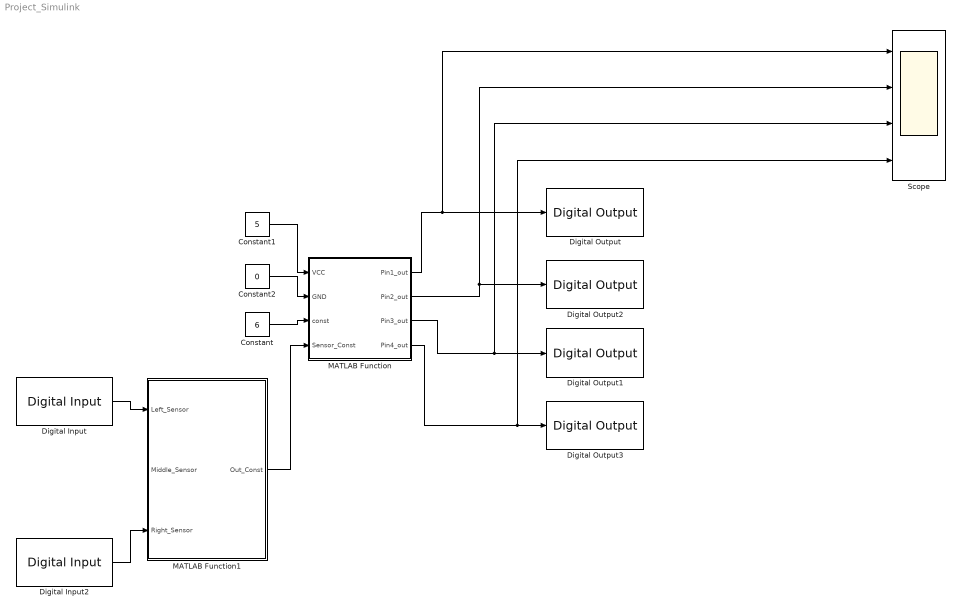
== matlab function Project_Simulink/MATLAB Function1 ==
function Out_Const  = fcn(Left_Sensor,Middle_Sensor,Right_Sensor)
%#codegen
% surface then arduino gets 1 as input 
%and when senses black line arduino gets 0 as input.
if ((Left_Sensor >= 0) && (Middle_Sensor == 1) && (Right_Sensor >= 0)) % forward
    Out_Const=1;
elseif ((Left_Sensor >= 0) && (Middle_Sensor >= 0) && (Right_Sensor == 1)) % Right
    Out_Const=3;
elseif ((Left_Sensor ==1) && (Middle_Sensor >=0) && (Right_Sensor >= 0)) % left
    Out_Const=4;  
else
    Out_Const=7;  
    
end

== matlab function Project_Simulink/MATLAB Function ==


function [Pin1_out,Pin2_out,Pin3_out,Pin4_out] = fcn(VCC,GND,const,Sensor_Const)

% Line Follower *******************************

if(const == 6 && Sensor_Const ==1) % forward
    Pin1_out=VCC;
    Pin2_out=GND;
    Pin3_out=VCC;
    Pin4_out=GND;
elseif(const == 6 && Sensor_Const ==3) % right 
    Pin1_out=GND;
    Pin2_out=VCC;
    Pin3_out=GND;
    Pin4_out=GND;
elseif (const == 6 && Sensor_Const ==4) %Left
    Pin1_out=GND;
    Pin2_out=GND;
    Pin3_out=GND;
    Pin4_out=VCC;    
elseif (const == 1) %forward
    Pin1_out=VCC;
    Pin2_out=GND;
    Pin3_out=VCC;
    Pin4_out=GND;
elseif (const == 2) %reverse
    Pin1_out=GND;
    Pin2_out=VCC;
    Pin3_out=GND;
    Pin4_out=VCC;
elseif (const == 3) %right
    Pin1_out=GND;
    Pin2_out=VCC;
    Pin3_out=GND;
    Pin4_out=GND;
elseif (const == 4) %Left
    Pin1_out=GND;
    Pin2_out=GND;
    Pin3_out=GND;
    Pin4_out=VCC;
else    %stop
    Pin1_out=GND;
    Pin2_out=GND;
    Pin3_out=GND;
    Pin4_out=GND;

end

/*
 * File: Project_Simulink.c
 *
 * Code generated for Simulink model 'Project_Simulink'.
 *
 * Model version                  : 1.58
 * Simulink Coder version         : 8.10 (R2016a) 10-Feb-2016
 * C/C++ source code generated on : Sun Feb 09 15:02:18 2020
 *
 * Target selection: ert.tlc
 * Embedded hardware selection: Atmel->AVR
 * Code generation objectives: Unspecified
 * Validation result: Not run
 */

#include "Project_Simulink.h"
#include "Project_Simulink_private.h"
#include "Project_Simulink_dt.h"

/* Block signals (auto storage) */
B_Project_Simulink_T Project_Simulink_B;

/* Block states (auto storage) */
DW_Project_Simulink_T Project_Simulink_DW;

/* Real-time model */
RT_MODEL_Project_Simulink_T Project_Simulink_M_;
RT_MODEL_Project_Simulink_T *const Project_Simulink_M = &Project_Simulink_M_;

/* Model step function */
void Project_Simulink_step(void)
{
  boolean_T rtb_DigitalInput_0;
  boolean_T rtb_DigitalInput2_0;
  int16_T rtb_Out_Const;
  uint8_T tmp;

  /* S-Function (arduinodigitalinput_sfcn): '<Root>/Digital Input' */
  rtb_DigitalInput_0 = MW_digitalRead(Project_Simulink_P.DigitalInput_p1);

  /* S-Function (arduinodigitalinput_sfcn): '<Root>/Digital Input2' */
  rtb_DigitalInput2_0 = MW_digitalRead(Project_Simulink_P.DigitalInput2_p1);

  /* MATLAB Function: '<Root>/MATLAB Function1' incorporates:
   *  S-Function (arduinodigitalinput_sfcn): '<Root>/Digital Input'
   *  S-Function (arduinodigitalinput_sfcn): '<Root>/Digital Input2'
   */
  /*  surface then arduino gets 1 as input  */
  /* and when senses black line arduino gets 0 as input. */
  /* MATLAB Function 'MATLAB Function1': '<S6>:1' */
  /* '<S6>:1:5' if ((Left_Sensor >= 0) && (Middle_Sensor == 1) && (Right_Sensor >= 0)) */
  if (rtb_DigitalInput2_0) {
    /* '<S6>:1:7' elseif ((Left_Sensor >= 0) && (Middle_Sensor >= 0) && (Right_Sensor == 1)) */
    /*  Right */
    /* '<S6>:1:8' Out_Const=3; */
    rtb_Out_Const = 3;
  } else if (rtb_DigitalInput_0) {
    /* '<S6>:1:9' elseif ((Left_Sensor ==1) && (Middle_Sensor >=0) && (Right_Sensor >= 0)) */
    /*  left */
    /* '<S6>:1:10' Out_Const=4; */
    rtb_Out_Const = 4;
  } else {
    /* '<S6>:1:11' else */
    /* '<S6>:1:12' Out_Const=7; */
    rtb_Out_Const = 7;
  }

  /* End of MATLAB Function: '<Root>/MATLAB Function1' */

  /* MATLAB Function: '<Root>/MATLAB Function' incorporates:
   *  Constant: '<Root>/Constant'
   *  Constant: '<Root>/Constant1'
   *  Constant: '<Root>/Constant2'
   */
  /*  Line Follower ******************************* */
  /* MATLAB Function 'MATLAB Function': '<S5>:1' */
  /* '<S5>:1:7' if(const == 6 && Sensor_Const ==1) */
  if ((Project_Simulink_P.Constant_Value == 6.0) && (rtb_Out_Const == 3)) {
    /* '<S5>:1:12' elseif(const == 6 && Sensor_Const ==3) */
    /*  right  */
    /* '<S5>:1:13' Pin1_out=GND; */
    Project_Simulink_B.Pin1_out = Project_Simulink_P.Constant2_Value;

    /* '<S5>:1:14' Pin2_out=VCC; */
    Project_Simulink_B.Pin2_out = Project_Simulink_P.Constant1_Value;

    /* '<S5>:1:15' Pin3_out=GND; */
    Project_Simulink_B.Pin3_out = Project_Simulink_P.Constant2_Value;

    /* '<S5>:1:16' Pin4_out=GND; */
    Project_Simulink_B.Pin4_out = Project_Simulink_P.Constant2_Value;
  } else if ((Project_Simulink_P.Constant_Value == 6.0) && (rtb_Out_Const == 4))
  {
    /* '<S5>:1:17' elseif (const == 6 && Sensor_Const ==4) */
    /* Left */
    /* '<S5>:1:18' Pin1_out=GND; */
    Project_Simulink_B.Pin1_out = Project_Simulink_P.Constant2_Value;

    /* '<S5>:1:19' Pin2_out=GND; */
    Project_Simulink_B.Pin2_out = Project_Simulink_P.Constant2_Value;

    /* '<S5>:1:20' Pin3_out=GND; */
    Project_Simulink_B.Pin3_out = Project_Simulink_P.Constant2_Value;

    /* '<S5>:1:21' Pin4_out=VCC; */
    Project_Simulink_B.Pin4_out = Project_Simulink_P.Constant1_Value;
  } else if (Project_Simulink_P.Constant_Value == 1.0) {
    /* '<S5>:1:22' elseif (const == 1) */
    /* forward */
    /* '<S5>:1:23' Pin1_out=VCC; */
    Project_Simulink_B.Pin1_out = Project_Simulink_P.Constant1_Value;

    /* '<S5>:1:24' Pin2_out=GND; */
    Project_Simulink_B.Pin2_out = Project_Simulink_P.Constant2_Value;

    /* '<S5>:1:25' Pin3_out=VCC; */
    Project_Simulink_B.Pin3_out = Project_Simulink_P.Constant1_Value;

    /* '<S5>:1:26' Pin4_out=GND; */
    Project_Simulink_B.Pin4_out = Project_Simulink_P.Constant2_Value;
  } else if (Project_Simulink_P.Constant_Value == 2.0) {
    /* '<S5>:1:27' elseif (const == 2) */
    /* reverse */
    /* '<S5>:1:28' Pin1_out=GND; */
    Project_Simulink_B.Pin1_out = Project_Simulink_P.Constant2_Value;

    /* '<S5>:1:29' Pin2_out=VCC; */
    Project_Simulink_B.Pin2_out = Project_Simulink_P.Constant1_Value;

    /* '<S5>:1:30' Pin3_out=GND; */
    Project_Simulink_B.Pin3_out = Project_Simulink_P.Constant2_Value;

    /* '<S5>:1:31' Pin4_out=VCC; */
    Project_Simulink_B.Pin4_out = Project_Simulink_P.Constant1_Value;
  } else if (Project_Simulink_P.Constant_Value == 3.0) {
    /* '<S5>:1:32' elseif (const == 3) */
    /* right */
    /* '<S5>:1:33' Pin1_out=GND; */
    Project_Simulink_B.Pin1_out = Project_Simulink_P.Constant2_Value;

    /* '<S5>:1:34' Pin2_out=VCC; */
    Project_Simulink_B.Pin2_out = Project_Simulink_P.Constant1_Value;

    /* '<S5>:1:35' Pin3_out=GND; */
    Project_Simulink_B.Pin3_out = Project_Simulink_P.Constant2_Value;

    /* '<S5>:1:36' Pin4_out=GND; */
    Project_Simulink_B.Pin4_out = Project_Simulink_P.Constant2_Value;
  } else if (Project_Simulink_P.Constant_Value == 4.0) {
    /* '<S5>:1:37' elseif (const == 4) */
    /* Left */
    /* '<S5>:1:38' Pin1_out=GND; */
    Project_Simulink_B.Pin1_out = Project_Simulink_P.Constant2_Value;

    /* '<S5>:1:39' Pin2_out=GND; */
    Project_Simulink_B.Pin2_out = Project_Simulink_P.Constant2_Value;

    /* '<S5>:1:40' Pin3_out=GND; */
    Project_Simulink_B.Pin3_out = Project_Simulink_P.Constant2_Value;

    /* '<S5>:1:41' Pin4_out=VCC; */
    Project_Simulink_B.Pin4_out = Project_Simulink_P.Constant1_Value;
  } else {
    /* '<S5>:1:42' else */
    /* stop */
    /* '<S5>:1:43' Pin1_out=GND; */
    Project_Simulink_B.Pin1_out = Project_Simulink_P.Constant2_Value;

    /* '<S5>:1:44' Pin2_out=GND; */
    Project_Simulink_B.Pin2_out = Project_Simulink_P.Constant2_Value;

    /* '<S5>:1:45' Pin3_out=GND; */
    Project_Simulink_B.Pin3_out = Project_Simulink_P.Constant2_Value;

    /* '<S5>:1:46' Pin4_out=GND; */
    Project_Simulink_B.Pin4_out = Project_Simulink_P.Constant2_Value;
  }

  /* End of MATLAB Function: '<Root>/MATLAB Function' */

  /* DataTypeConversion: '<S1>/Data Type Conversion' */
  if (Project_Simulink_B.Pin1_out < 256.0) {
    if (Project_Simulink_B.Pin1_out >= 0.0) {
      tmp = (uint8_T)Project_Simulink_B.Pin1_out;
    } else {
      tmp = 0U;
    }
  } else {
    tmp = MAX_uint8_T;
  }

  /* End of DataTypeConversion: '<S1>/Data Type Conversion' */

  /* S-Function (arduinodigitaloutput_sfcn): '<S1>/Digital Output' */
  MW_digitalWrite(Project_Simulink_P.DigitalOutput_pinNumber, tmp);

  /* DataTypeConversion: '<S2>/Data Type Conversion' */
  if (Project_Simulink_B.Pin3_out < 256.0) {
    if (Project_Simulink_B.Pin3_out >= 0.0) {
      tmp = (uint8_T)Project_Simulink_B.Pin3_out;
    } else {
      tmp = 0U;
    }
  } else {
    tmp = MAX_uint8_T;
  }

  /* End of DataTypeConversion: '<S2>/Data Type Conversion' */

  /* S-Function (arduinodigitaloutput_sfcn): '<S2>/Digital Output' */
  MW_digitalWrite(Project_Simulink_P.DigitalOutput_pinNum_igrvltb5jj, tmp);

  /* DataTypeConversion: '<S3>/Data Type Conversion' */
  if (Project_Simulink_B.Pin2_out < 256.0) {
    if (Project_Simulink_B.Pin2_out >= 0.0) {
      tmp = (uint8_T)Project_Simulink_B.Pin2_out;
    } else {
      tmp = 0U;
    }
  } else {
    tmp = MAX_uint8_T;
  }

  /* End of DataTypeConversion: '<S3>/Data Type Conversion' */

  /* S-Function (arduinodigitaloutput_sfcn): '<S3>/Digital Output' */
  MW_digitalWrite(Project_Simulink_P.DigitalOutput_pinNum_be11dsugft, tmp);

  /* DataTypeConversion: '<S4>/Data Type Conversion' */
  if (Project_Simulink_B.Pin4_out < 256.0) {
    if (Project_Simulink_B.Pin4_out >= 0.0) {
      tmp = (uint8_T)Project_Simulink_B.Pin4_out;
    } else {
      tmp = 0U;
    }
  } else {
    tmp = MAX_uint8_T;
  }

  /* End of DataTypeConversion: '<S4>/Data Type Conversion' */

  /* S-Function (arduinodigitaloutput_sfcn): '<S4>/Digital Output' */
  MW_digitalWrite(Project_Simulink_P.DigitalOutput_pinNum_cegre2zem4, tmp);

  /* External mode */
  rtExtModeUploadCheckTrigger(1);

  {                                    /* Sample time: [1.0s, 0.0s] */
    rtExtModeUpload(0, Project_Simulink_M->Timing.taskTime0);
  }

  /* signal main to stop simulation */
  {                                    /* Sample time: [1.0s, 0.0s] */
    if ((rtmGetTFinal(Project_Simulink_M)!=-1) &&
        !((rtmGetTFinal(Project_Simulink_M)-Project_Simulink_M->Timing.taskTime0)
          > Project_Simulink_M->Timing.taskTime0 * (DBL_EPSILON))) {
      rtmSetErrorStatus(Project_Simulink_M, "Simulation finished");
    }

    if (rtmGetStopRequested(Project_Simulink_M)) {
      rtmSetErrorStatus(Project_Simulink_M, "Simulation finished");
    }
  }

  /* Update absolute time for base rate */
  /* The "clockTick0" counts the number of times the code of this task has
   * been executed. The absolute time is the multiplication of "clockTick0"
   * and "Timing.stepSize0". Size of "clockTick0" ensures timer will not
   * overflow during the application lifespan selected.
   * Timer of this task consists of two 32 bit unsigned integers.
   * The two integers represent the low bits Timing.clockTick0 and the high bits
   * Timing.clockTickH0. When the low bit overflows to 0, the high bits increment.
   */
  if (!(++Project_Simulink_M->Timing.clockTick0)) {
    ++Project_Simulink_M->Timing.clockTickH0;
  }

  Project_Simulink_M->Timing.taskTime0 = Project_Simulink_M->Timing.clockTick0 *
    Project_Simulink_M->Timing.stepSize0 +
    Project_Simulink_M->Timing.clockTickH0 *
    Project_Simulink_M->Timing.stepSize0 * 4294967296.0;
}
